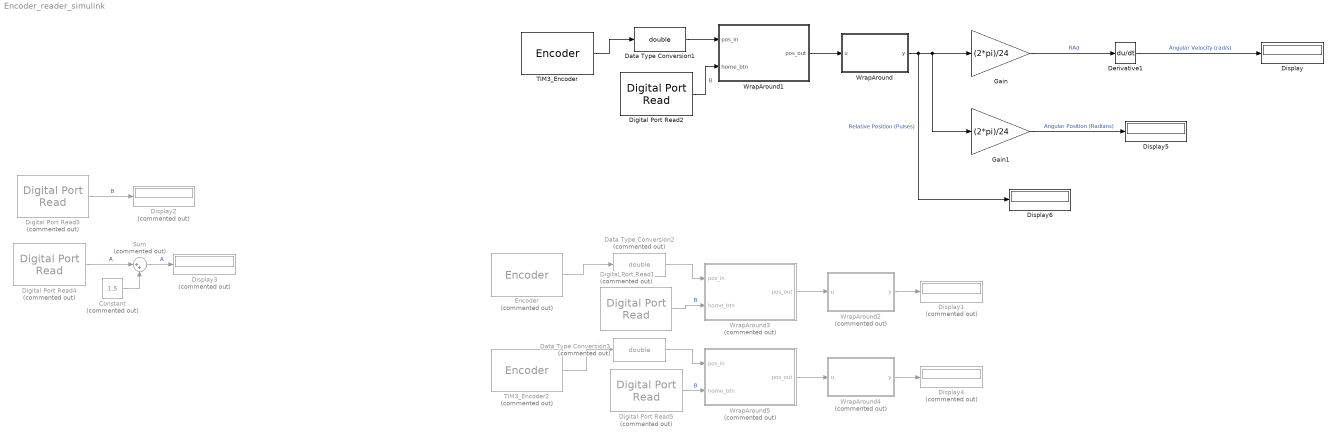
== matlab function Encoder_reader_simulink/WrapAround1 ==
function pos_out = encoder_home(pos_in, home_btn)
%#codegen

persistent offset
if isempty(offset)
    offset = 0;  % ค่าเริ่มต้นของ offset
end

if home_btn == 1
    % เมื่อกดปุ่ม home ให้จำค่าปัจจุบันเป็น offset
    offset = pos_in;
end

% เอาค่าปัจจุบันลบด้วย offset → ให้ค่าเป็น 0 ที่ home
pos_out = pos_in - offset;

end

== matlab function Encoder_reader_simulink/WrapAround ==
function y = WrapAroundFcn(u)

persistent prev acc
if isempty(prev)
    prev = double(u);
    acc  = double(u);
end

wrapMax  = 61440;      % ค่า Period + 1 (61439 + 1)
halfWrap = wrapMax / 2;

% คำนวณความต่างระหว่างค่าปัจจุบันกับค่าก่อนหน้า
diff = double(u) - prev;

% ---------- ปรับค่าเมื่อข้ามรอบ ----------
if diff >  halfWrap
    % ข้ามจาก 61439 → 0  (CW)
    diff = diff - wrapMax;
elseif diff < -halfWrap
    % ข้ามจาก 0 → 61439  (CCW)
    diff = diff + wrapMax;
end

% ---------- สะสมค่าต่อเนื่อง ----------
acc = acc + diff;

% ---------- อัปเดตค่าและส่งออก ----------
y = acc;
prev = double(u);
end

== matlab function Encoder_reader_simulink/WrapAround2 ==
function y = WrapAroundFcn(u)

persistent prev acc
if isempty(prev)
    prev = double(u);
    acc  = double(u);
end

wrapMax  = 61440;      % ค่า Period + 1 (61439 + 1)
halfWrap = wrapMax / 2;

% คำนวณความต่างระหว่างค่าปัจจุบันกับค่าก่อนหน้า
diff = double(u) - prev;

% ---------- ปรับค่าเมื่อข้ามรอบ ----------
if diff >  halfWrap
    % ข้ามจาก 61439 → 0  (CW)
    diff = diff - wrapMax;
elseif diff < -halfWrap
    % ข้ามจาก 0 → 61439  (CCW)
    diff = diff + wrapMax;
end

% ---------- สะสมค่าต่อเนื่อง ----------
acc = acc + diff;

% ---------- อัปเดตค่าและส่งออก ----------
y = acc;
prev = double(u);
end

== matlab function Encoder_reader_simulink/WrapAround3 ==
function pos_out = encoder_home(pos_in, home_btn)
%#codegen

persistent offset
if isempty(offset)
    offset = 0;  % ค่าเริ่มต้นของ offset
end

if home_btn == 1
    % เมื่อกดปุ่ม home ให้จำค่าปัจจุบันเป็น offset
    offset = pos_in;
end

% เอาค่าปัจจุบันลบด้วย offset → ให้ค่าเป็น 0 ที่ home
pos_out = pos_in - offset;

end

== matlab function Encoder_reader_simulink/WrapAround4 ==
function y = WrapAroundFcn(u)

persistent prev acc
if isempty(prev)
    prev = double(u);
    acc  = double(u);
end

wrapMax  = 61440;      % ค่า Period + 1 (61439 + 1)
halfWrap = wrapMax / 2;

% คำนวณความต่างระหว่างค่าปัจจุบันกับค่าก่อนหน้า
diff = double(u) - prev;

% ---------- ปรับค่าเมื่อข้ามรอบ ----------
if diff >  halfWrap
    % ข้ามจาก 61439 → 0  (CW)
    diff = diff - wrapMax;
elseif diff < -halfWrap
    % ข้ามจาก 0 → 61439  (CCW)
    diff = diff + wrapMax;
end

% ---------- สะสมค่าต่อเนื่อง ----------
acc = acc + diff;

% ---------- อัปเดตค่าและส่งออก ----------
y = acc;
prev = double(u);
end

== matlab function Encoder_reader_simulink/WrapAround5 ==
function pos_out = encoder_home(pos_in, home_btn)
%#codegen

persistent offset
if isempty(offset)
    offset = 0;  % ค่าเริ่มต้นของ offset
end

if home_btn == 1
    % เมื่อกดปุ่ม home ให้จำค่าปัจจุบันเป็น offset
    offset = pos_in;
end

% เอาค่าปัจจุบันลบด้วย offset → ให้ค่าเป็น 0 ที่ home
pos_out = pos_in - offset;

end

/*
 * Academic License - for use in teaching, academic research, and meeting
 * course requirements at degree granting institutions only.  Not for
 * government, commercial, or other organizational use.
 *
 * File: Encoder_reader_simulink.c
 *
 * Code generated for Simulink model 'Encoder_reader_simulink'.
 *
 * Model version                  : 2.6
 * Simulink Coder version         : 25.1 (R2025a) 21-Nov-2024
 * C/C++ source code generated on : Thu Oct 30 02:16:29 2025
 *
 * Target selection: ert.tlc
 * Embedded hardware selection: ARM Compatible->ARM Cortex-M
 * Code generation objectives: Unspecified
 * Validation result: Not run
 */

#include "Encoder_reader_simulink.h"
#include "Encoder_reader_simulink_types.h"
#include "rtwtypes.h"
#include "stm_timer_ll.h"
#include "Encoder_reader_simulink_private.h"

/* Block signals (default storage) */
B_Encoder_reader_simulink_T Encoder_reader_simulink_B;

/* Block states (default storage) */
DW_Encoder_reader_simulink_T Encoder_reader_simulink_DW;

/* Real-time model */
static RT_MODEL_Encoder_reader_simul_T Encoder_reader_simulink_M_;
RT_MODEL_Encoder_reader_simul_T *const Encoder_reader_simulink_M =
  &Encoder_reader_simulink_M_;

/* Forward declaration for local functions */
static void Encoder_reader_SystemCore_setup(stm32cube_blocks_EncoderBlock_T *obj);
static void Encoder_reader_SystemCore_setup(stm32cube_blocks_EncoderBlock_T *obj)
{
  uint8_T ChannelInfo;
  TIM_Type_T b;
  boolean_T isSlaveModeTriggerEnabled;

  /* Start for MATLABSystem: '<Root>/TIM3_Encoder' */
  obj->isInitialized = 1;
  b.PeripheralPtr = TIM3;
  b.isCenterAlignedMode = false;

  /* Start for MATLABSystem: '<Root>/TIM3_Encoder' */
  b.repetitionCounter = 0U;
  obj->TimerHandle = Timer_Handle_Init(&b);
  enableTimerInterrupts(obj->TimerHandle, 0);
  ChannelInfo = ENABLE_CH;

  /* Start for MATLABSystem: '<Root>/TIM3_Encoder' */
  enableTimerChannel1(obj->TimerHandle, ChannelInfo);
  enableTimerChannel2(obj->TimerHandle, ChannelInfo);
  isSlaveModeTriggerEnabled = isSlaveTriggerModeEnabled(obj->TimerHandle);
  if (!isSlaveModeTriggerEnabled) {
    /* Start for MATLABSystem: '<Root>/TIM3_Encoder' */
    enableCounter(obj->TimerHandle, false);
  }

  obj->isSetupComplete = true;
}

/* Model step function */
void Encoder_reader_simulink_step(void)
{
  {
    real_T diff;
    real_T pos_out;
    real_T *lastU;
    uint32_T pinReadLoc;
    uint32_T timerCounts;

    /* MATLABSystem: '<Root>/TIM3_Encoder' */
    timerCounts = getTimerCounterValueForG4
      (Encoder_reader_simulink_DW.obj_p.TimerHandle, false, NULL);

    /* MATLABSystem: '<S5>/Digital Port Read' */
    pinReadLoc = LL_GPIO_ReadInputPort(GPIOC);

    /* MATLAB Function: '<Root>/WrapAround1' incorporates:
     *  DataTypeConversion: '<Root>/Data Type Conversion1'
     *  MATLABSystem: '<Root>/TIM3_Encoder'
     *  MATLABSystem: '<S5>/Digital Port Read'
     * */
    if ((pinReadLoc & 8192U) != 0U) {
      Encoder_reader_simulink_DW.offset = timerCounts;
    }

    pos_out = (real_T)timerCounts - Encoder_reader_simulink_DW.offset;

    /* End of MATLAB Function: '<Root>/WrapAround1' */

    /* MATLAB Function: '<Root>/WrapAround' */
    if (!Encoder_reader_simulink_DW.prev_not_empty) {
      Encoder_reader_simulink_DW.prev = pos_out;
      Encoder_reader_simulink_DW.prev_not_empty = true;
      Encoder_reader_simulink_DW.acc = pos_out;
    }

    diff = pos_out - Encoder_reader_simulink_DW.prev;
    if (diff > 30720.0) {
      diff -= 61440.0;
    } else if (diff < -30720.0) {
      diff += 61440.0;
    }

    Encoder_reader_simulink_DW.acc += diff;
    Encoder_reader_simulink_B.y = Encoder_reader_simulink_DW.acc;
    Encoder_reader_simulink_DW.prev = pos_out;

    /* End of MATLAB Function: '<Root>/WrapAround' */

    /* Gain: '<Root>/Gain' incorporates:
     *  Gain: '<Root>/Gain1'
     */
    Encoder_reader_simulink_B.RAd = 0.26179938779914941 *
      Encoder_reader_simulink_B.y;

    /* Derivative: '<Root>/Derivative1' */
    pos_out = Encoder_reader_simulink_M->Timing.t[0];
    if ((Encoder_reader_simulink_DW.TimeStampA >= pos_out) &&
        (Encoder_reader_simulink_DW.TimeStampB >= pos_out)) {
      /* Derivative: '<Root>/Derivative1' */
      Encoder_reader_simulink_B.AngularVelocityrads = 0.0;
    } else {
      diff = Encoder_reader_simulink_DW.TimeStampA;
      lastU = &Encoder_reader_simulink_DW.LastUAtTimeA;
      if (Encoder_reader_simulink_DW.TimeStampA <
          Encoder_reader_simulink_DW.TimeStampB) {
        if (Encoder_reader_simulink_DW.TimeStampB < pos_out) {
          diff = Encoder_reader_simulink_DW.TimeStampB;
          lastU = &Encoder_reader_simulink_DW.LastUAtTimeB;
        }
      } else if (Encoder_reader_simulink_DW.TimeStampA >= pos_out) {
        diff = Encoder_reader_simulink_DW.TimeStampB;
        lastU = &Encoder_reader_simulink_DW.LastUAtTimeB;
      }

      /* Derivative: '<Root>/Derivative1' */
      Encoder_reader_simulink_B.AngularVelocityrads =
        (Encoder_reader_simulink_B.RAd - *lastU) / (pos_out - diff);
    }

    /* End of Derivative: '<Root>/Derivative1' */
    /* Gain: '<Root>/Gain1' */
    Encoder_reader_simulink_B.AngularPositionRadians =
      Encoder_reader_simulink_B.RAd;
  }

  {
    real_T *lastU;

    /* Update for Derivative: '<Root>/Derivative1' */
    if (Encoder_reader_simulink_DW.TimeStampA == (rtInf)) {
      Encoder_reader_simulink_DW.TimeStampA =
        Encoder_reader_simulink_M->Timing.t[0];
      lastU = &Encoder_reader_simulink_DW.LastUAtTimeA;
    } else if (Encoder_reader_simulink_DW.TimeStampB == (rtInf)) {
      Encoder_reader_simulink_DW.TimeStampB =
        Encoder_reader_simulink_M->Timing.t[0];
      lastU = &Encoder_reader_simulink_DW.LastUAtTimeB;
    } else if (Encoder_reader_simulink_DW.TimeStampA <
               Encoder_reader_simulink_DW.TimeStampB) {
      Encoder_reader_simulink_DW.TimeStampA =
        Encoder_reader_simulink_M->Timing.t[0];
      lastU = &Encoder_reader_simulink_DW.LastUAtTimeA;
    } else {
      Encoder_reader_simulink_DW.TimeStampB =
        Encoder_reader_simulink_M->Timing.t[0];
      lastU = &Encoder_reader_simulink_DW.LastUAtTimeB;
    }

    *lastU = Encoder_reader_simulink_B.RAd;

    /* End of Update for Derivative: '<Root>/Derivative1' */
  }

  {                                    /* Sample time: [0.001s, 0.0s] */
    extmodeErrorCode_T errorCode = EXTMODE_SUCCESS;
    extmodeSimulationTime_T extmodeTime = (extmodeSimulationTime_T)
      ((Encoder_reader_simulink_M->Timing.clockTick1) * 0.001);

    /* Trigger External Mode event */
    errorCode = extmodeEvent(1, extmodeTime);
    if (errorCode != EXTMODE_SUCCESS) {
      /* Code to handle External Mode event errors
         may be added here */
    }
  }

  /* Update absolute time for base rate */
  /* The "clockTick0" counts the number of times the code of this task has
   * been executed. The absolute time is the multiplication of "clockTick0"
   * and "Timing.stepSize0". Size of "clockTick0" ensures timer will not
   * overflow during the application lifespan selected.
   */
  Encoder_reader_simulink_M->Timing.t[0] =
    ((time_T)(++Encoder_reader_simulink_M->Timing.clockTick0)) *
    Encoder_reader_simulink_M->Timing.stepSize0;

  {
    /* Update absolute timer for sample time: [0.001s, 0.0s] */
    /* The "clockTick1" counts the number of times the code of this task has
     * been executed. The resolution of this integer timer is 0.001, which is the step size
     * of the task. Size of "clockTick1" ensures timer will not overflow during the
     * application lifespan selected.
     */
    Encoder_reader_simulink_M->Timing.clockTick1++;
  }
}
